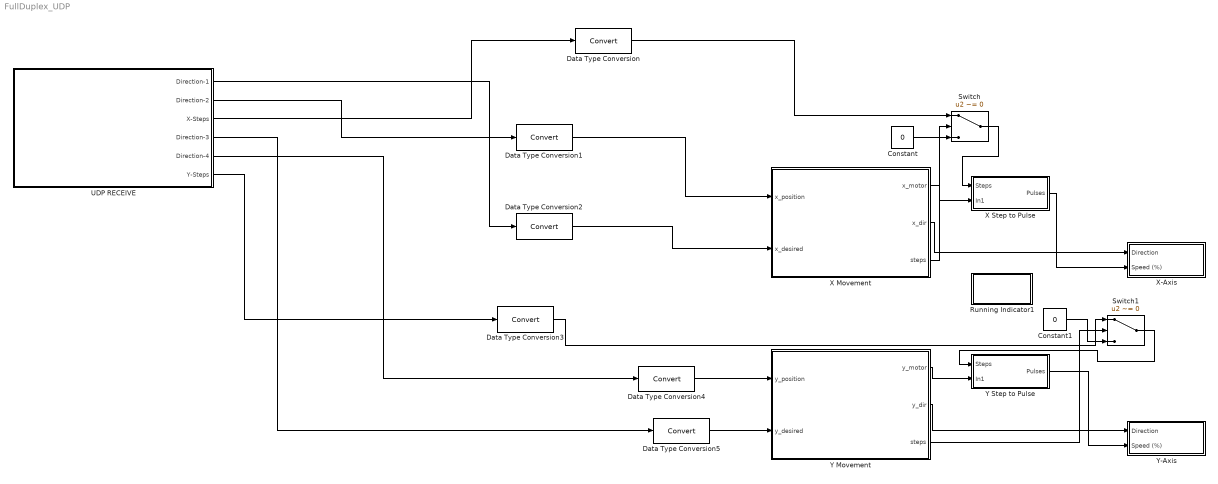
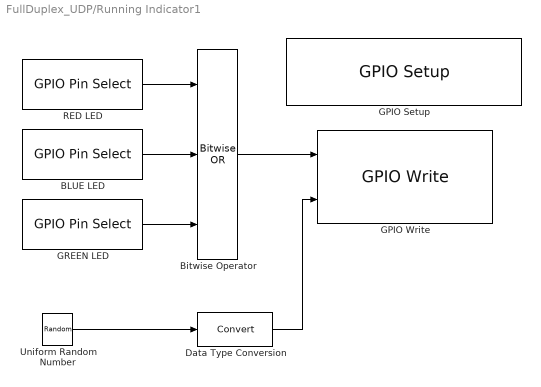
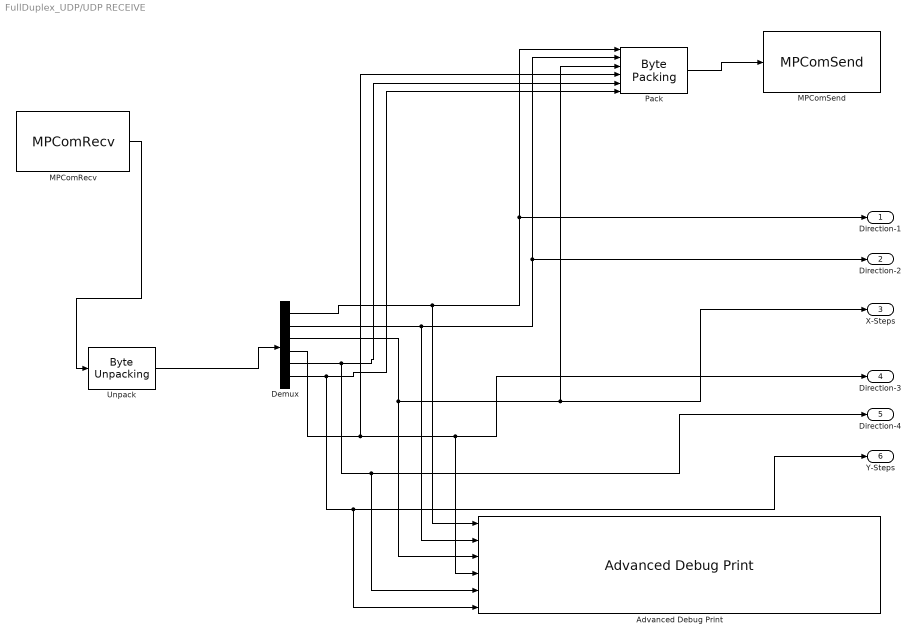
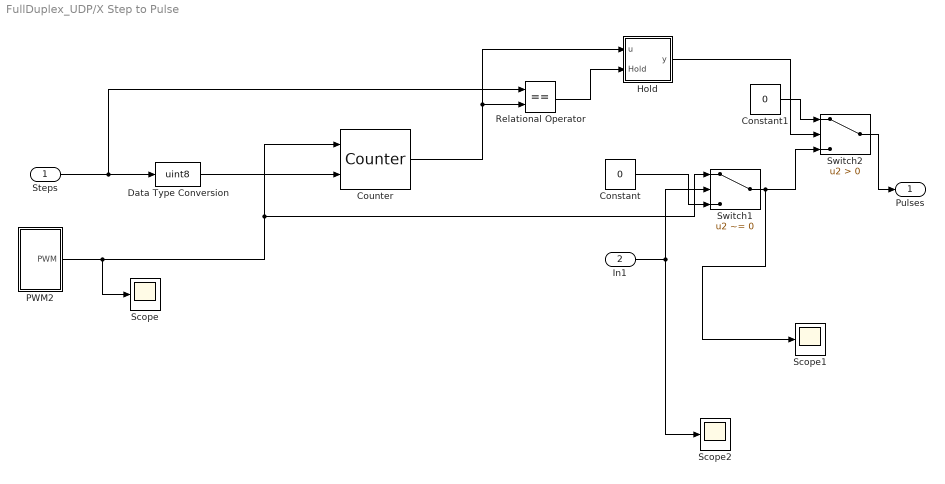
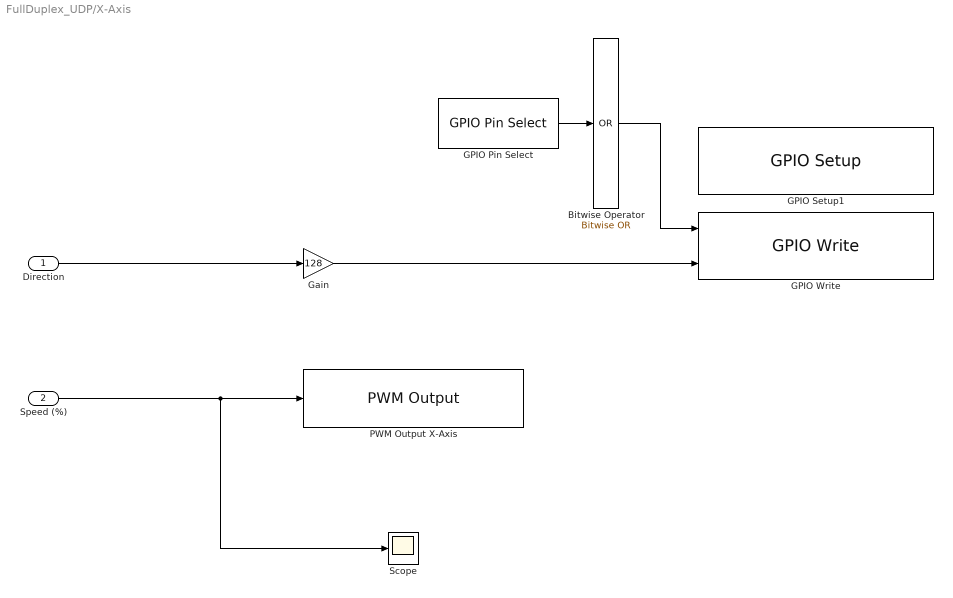
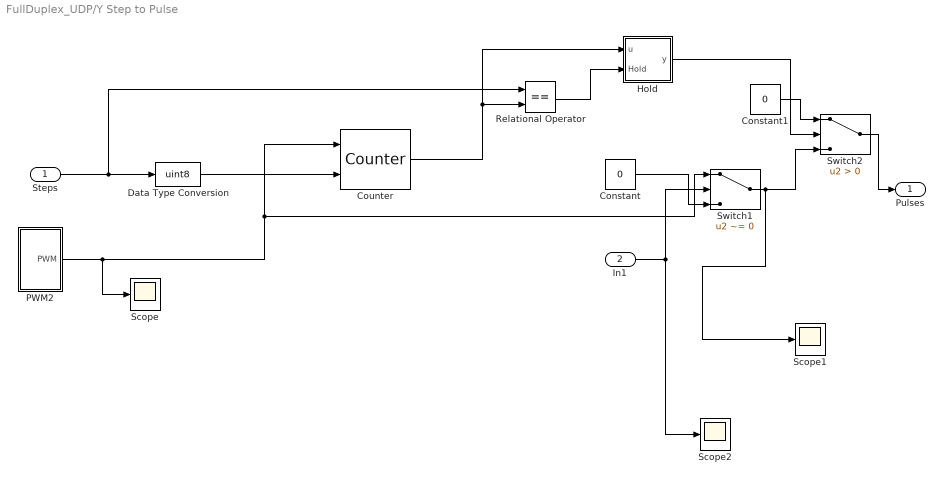
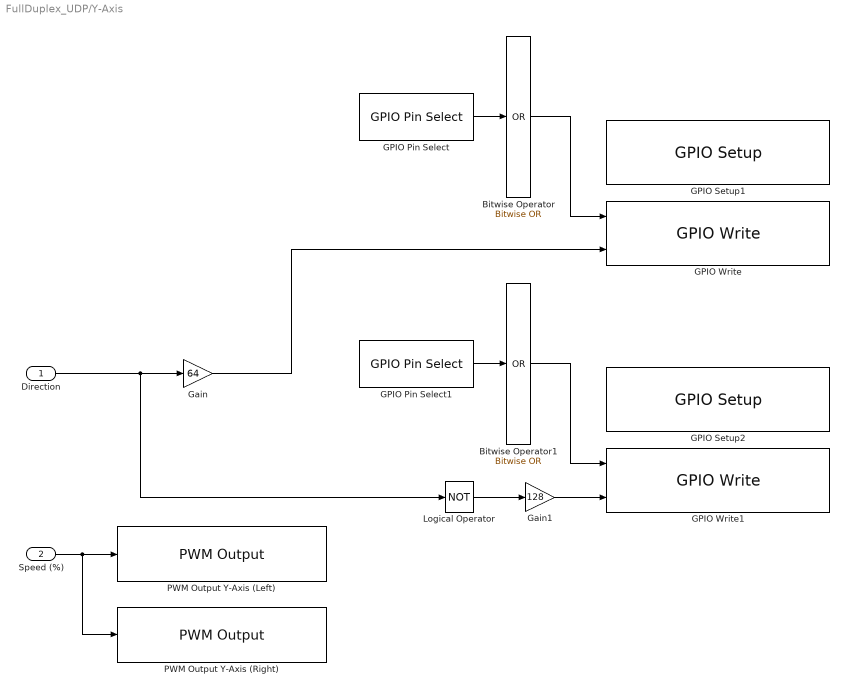
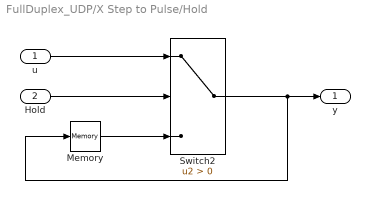
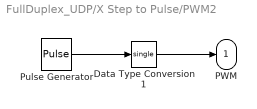
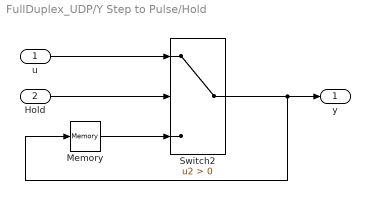
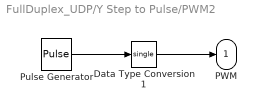
== stateflow chart FullDuplex_UDP/X Movement ==
  state Motor_Moving_CCW1
    entry:
    steps = 1;
    x_dir = 0;
    x_motor = 1;
    exit:
    x_motor = 0;
    steps = 0;
  state Motor_Still
    entry:
    steps = 1;
    x_motor = 0;
    exit:
    steps = 0;
  state Motor_Moving_CW
    entry:
    steps = 1;
    x_dir = 1;
    x_motor = 1;
    exit:
    x_motor = 0;
    steps = 0;
  (default) -> Motor_Still
  Motor_Still -> Motor_Moving_CCW1 [order 1] : [x_position < x_desired]
  Motor_Moving_CCW1 -> Motor_Still [order 1] : [x_position == x_desired]
  Motor_Moving_CW -> Motor_Still [order 1] : [x_position == x_desired]
  Motor_Still -> Motor_Moving_CW [order 2] : [x_position > x_desired]
  Motor_Moving_CCW1 -> Motor_Moving_CW [order 2] : [x_position > x_desired]
  Motor_Moving_CW -> Motor_Moving_CCW1 [order 2] : [x_position < x_desired]
  data: x_position input; x_desired input; x_motor output uint8; x_dir output uint8; steps output single

== stateflow chart FullDuplex_UDP/Y Movement ==
  state Motor_Still
    entry:
    steps = 1;
    y_motor = 0;
  state Motor_Moving_CCW1
    entry:
    steps = 1;
    y_dir = 0;
    y_motor = 1;
    exit:
    y_motor = 0;
    steps = 0;
  state Motor_Moving_CW
    entry:
    steps = 1;
    y_dir = 1;
    y_motor = 1;
    exit:
    y_motor = 0;
    steps = 0;
  (default) -> Motor_Still
  Motor_Still -> Motor_Moving_CCW1 [order 1] : [y_position < y_desired]
  Motor_Moving_CCW1 -> Motor_Still [order 1] : [y_position == y_desired]
  Motor_Moving_CW -> Motor_Still [order 1] : [y_position == y_desired]
  Motor_Still -> Motor_Moving_CW [order 2] : [y_position > y_desired]
  Motor_Moving_CW -> Motor_Moving_CCW1 [order 2] : [y_position < y_desired]
  Motor_Moving_CCW1 -> Motor_Moving_CW [order 2] : [y_position > y_desired]
  data: y_position input; y_desired input; y_motor output uint8; y_dir output uint8; steps output single

/*
 * Academic Student License -- for use by students to meet course
 * requirements and perform academic research at degree granting
 * institutions only.  Not for government, commercial, or other
 * organizational use.
 *
 * File: FullDuplex_UDP.c
 *
 * Code generated for Simulink model 'FullDuplex_UDP'.
 *
 * Model version                  : 1.104
 * Simulink Coder version         : 8.12 (R2017a) 16-Feb-2017
 * C/C++ source code generated on : Thu Oct 18 10:00:35 2018
 *
 * Target selection: ert.tlc
 * Embedded hardware selection: ARM Compatible->ARM Cortex
 * Code generation objectives:
 *    1. Execution efficiency
 *    2. ROM efficiency
 *    3. RAM efficiency
 *    4. Traceability
 *    5. Safety precaution
 *    6. Debugging
 *    7. MISRA C:2012 guidelines
 *    8. Polyspace
 * Validation result: Not run
 */

#include "FullDuplex_UDP.h"
#include "FullDuplex_UDP_private.h"
#include "MWDSP_EPH_R_R.h"
#include "rt_urand_Upu32_Yd_f_pw.h"

/* Named constants for Chart: '<Root>/X Movement' */
#define FullDuplex_IN_Motor_Moving_CCW1 ((uint8_T)1U)
#define FullDuplex_UDP_IN_Motor_Still  ((uint8_T)3U)
#define FullDuplex_U_IN_Motor_Moving_CW ((uint8_T)2U)
#define FullDuplex_U_IN_NO_ACTIVE_CHILD ((uint8_T)0U)

/* Block signals and states (auto storage) */
DW_FullDuplex_UDP FullDuplex_UDP_DW;

/* Real-time model */
RT_MODEL_FullDuplex_UDP FullDuplex_UDP_M_;
RT_MODEL_FullDuplex_UDP *const FullDuplex_UDP_M = &FullDuplex_UDP_M_;
static void rate_scheduler(void);

/*
 *   This function updates active task flag for each subrate.
 * The function is called at model base rate, hence the
 * generated code self-manages all its subrates.
 */
static void rate_scheduler(void)
{
  /* Compute which subrates run during the next base time step.  Subrates
   * are an integer multiple of the base rate counter.  Therefore, the subtask
   * counter is reset when it reaches its limit (zero means run).
   */
  (FullDuplex_UDP_M->Timing.TaskCounters.TID[1])++;
  if ((FullDuplex_UDP_M->Timing.TaskCounters.TID[1]) > 999) {/* Sample time: [0.2s, 0.0s] */
    FullDuplex_UDP_M->Timing.TaskCounters.TID[1] = 0;
  }

  (FullDuplex_UDP_M->Timing.TaskCounters.TID[2])++;
  if ((FullDuplex_UDP_M->Timing.TaskCounters.TID[2]) > 4999) {/* Sample time: [1.0s, 0.0s] */
    FullDuplex_UDP_M->Timing.TaskCounters.TID[2] = 0;
  }
}

/*
 * System initialize for atomic system:
 *    '<Root>/X Step to Pulse'
 *    '<Root>/Y Step to Pulse'
 */
void FullDuplex_UD_XSteptoPulse_Init(DW_XSteptoPulse_FullDuplex_UDP *localDW,
  P_XSteptoPulse_FullDuplex_UDP *localP)
{
  /* InitializeConditions for S-Function (sdspcount2): '<S4>/Counter' */
  localDW->Counter_ClkEphState = 5U;
  localDW->Counter_Count = localP->Counter_InitialCount;

  /* SystemInitialize for Atomic SubSystem: '<S4>/Hold' */
  /* InitializeConditions for Memory: '<S12>/Memory' */
  localDW->Memory_PreviousInput = localP->Memory_X0;

  /* End of SystemInitialize for SubSystem: '<S4>/Hold' */
}

/*
 * Start for atomic system:
 *    '<Root>/X Step to Pulse'
 *    '<Root>/Y Step to Pulse'
 */
void FullDuplex_U_XSteptoPulse_Start(DW_XSteptoPulse_FullDuplex_UDP *localDW)
{
  /* Start for DiscretePulseGenerator: '<S13>/Pulse Generator' */
  localDW->clockTickCounter = 0;
}

/*
 * Output and update for atomic system:
 *    '<Root>/X Step to Pulse'
 *    '<Root>/Y Step to Pulse'
 */
real32_T FullDuplex_UDP_XSteptoPulse(real_T rtu_Steps, uint8_T rtu_In1,
  DW_XSteptoPulse_FullDuplex_UDP *localDW, P_XSteptoPulse_FullDuplex_UDP *localP)
{
  real_T rtb_PulseGenerator;
  real32_T rtb_Switch2_d;
  real32_T rty_Pulses_0;

  /* DiscretePulseGenerator: '<S13>/Pulse Generator' */
  rtb_PulseGenerator = ((((real_T)localDW->clockTickCounter) <
    localP->PulseGenerator_Duty) && (localDW->clockTickCounter >= 0)) ?
    localP->PulseGenerator_Amp : 0.0;
  if (((real_T)localDW->clockTickCounter) >= (localP->PulseGenerator_Period -
       1.0)) {
    localDW->clockTickCounter = 0;
  } else {
    localDW->clockTickCounter++;
  }

  /* End of DiscretePulseGenerator: '<S13>/Pulse Generator' */

  /* S-Function (sdspcount2): '<S4>/Counter' incorporates:
   *  DataTypeConversion: '<S13>/Data Type Conversion1'
   *  DataTypeConversion: '<S4>/Data Type Conversion'
   */
  if (MWDSP_EPH_R_R((real32_T)rtb_PulseGenerator, &localDW->Counter_ClkEphState)
      != 0U) {
    if (localDW->Counter_Count < ((uint8_T)rtu_Steps)) {
      localDW->Counter_Count = (uint8_T)(((uint32_T)localDW->Counter_Count) + 1U);
    } else {
      localDW->Counter_Count = 0U;
    }
  }

  rtb_Switch2_d = (real32_T)localDW->Counter_Count;

  /* Outputs for Atomic SubSystem: '<S4>/Hold' */
  /* Switch: '<S12>/Switch2' incorporates:
   *  Memory: '<S12>/Memory'
   *  RelationalOperator: '<S4>/Relational Operator'
   *  S-Function (sdspcount2): '<S4>/Counter'
   */
  if (!(rtu_Steps == ((real_T)localDW->Counter_Count))) {
    rtb_Switch2_d = localDW->Memory_PreviousInput;
  }

  /* End of Switch: '<S12>/Switch2' */

  /* Update for Memory: '<S12>/Memory' */
  localDW->Memory_PreviousInput = rtb_Switch2_d;

  /* End of Outputs for SubSystem: '<S4>/Hold' */

  /* Switch: '<S4>/Switch2' incorporates:
   *  Constant: '<S4>/Constant'
   *  Constant: '<S4>/Constant1'
   *  Switch: '<S4>/Switch1'
   */
  if (rtb_Switch2_d > localP->Switch2_Threshold) {
    rty_Pulses_0 = localP->Constant1_Value;
  } else if (((int32_T)rtu_In1) != 0) {
    /* Switch: '<S4>/Switch1' incorporates:
     *  DataTypeConversion: '<S13>/Data Type Conversion1'
     */
    rty_Pulses_0 = (real32_T)rtb_PulseGenerator;
  } else {
    rty_Pulses_0 = localP->Constant_Value;
  }

  /* End of Switch: '<S4>/Switch2' */
  return rty_Pulses_0;
}

/* Model step function */
void FullDuplex_UDP_step(void)
{
  uint8_T tmp;
  real32_T rtb_Switch2;
  int32_T i;
  real_T tmp_0;

  /* S-Function (stellaris_lp_sfunc_DataPackin): '<S10>/S-Function' incorporates:
   *  Inport: '<S11>/In1'
   */
  tmp = datapacket_get(FullDuplex_UDP_P.SFunction_p1, 24,
                       FullDuplex_UDP_DW.SFunction_o1);

  /* Outputs for Enabled SubSystem: '<S10>/Enabled Subsystem' incorporates:
   *  EnablePort: '<S11>/Enable'
   */
  if (((int32_T)tmp) > 0) {
    for (i = 0; i < 24; i++) {
      FullDuplex_UDP_DW.In1[i] = FullDuplex_UDP_DW.SFunction_o1[i];
    }
  }

  /* End of S-Function (stellaris_lp_sfunc_DataPackin): '<S10>/S-Function' */
  /* End of Outputs for SubSystem: '<S10>/Enabled Subsystem' */

  /* S-Function (xpcbytepacking): '<S2>/Unpack' */

  /* Byte Unpacking: <S2>/Unpack */
  (void)memcpy((uint8_T*)&FullDuplex_UDP_DW.Unpack[0], (uint8_T*)
               &FullDuplex_UDP_DW.In1[0] + 0, 24);

  /* Chart: '<Root>/X Movement' */
  /* Gateway: X Movement */
  /* During: X Movement */
  if (((uint32_T)FullDuplex_UDP_DW.is_active_c2_FullDuplex_UDP) == 0U) {
    /* Entry: X Movement */
    FullDuplex_UDP_DW.is_active_c2_FullDuplex_UDP = 1U;

    /* Entry Internal: X Movement */
    /* Transition: '<S3>:10' */
    FullDuplex_UDP_DW.is_c2_FullDuplex_UDP = FullDuplex_UDP_IN_Motor_Still;

    /* Entry 'Motor_Still': '<S3>:3' */
    /* '<S3>:3:1' steps = 1; */
    FullDuplex_UDP_DW.steps_f = 1.0F;

    /* '<S3>:3:1' x_motor = 0; */
    FullDuplex_UDP_DW.x_motor = 0U;
  } else {
    switch (FullDuplex_UDP_DW.is_c2_FullDuplex_UDP) {
     case FullDuplex_IN_Motor_Moving_CCW1:
      FullDuplex_UDP_DW.x_dir = 0U;

      /* During 'Motor_Moving_CCW1': '<S3>:1' */
      /* '<S3>:4:1' sf_internal_predicateOutput = ... */
      /* '<S3>:4:1' x_position == x_desired; */
      if (FullDuplex_UDP_DW.Unpack[1] == FullDuplex_UDP_DW.Unpack[0]) {
        /* Transition: '<S3>:4' */
        /* Exit 'Motor_Moving_CCW1': '<S3>:1' */
        /* '<S3>:1:3' x_motor = 0; */
        /* '<S3>:1:4' steps = 0; */
        FullDuplex_UDP_DW.is_c2_FullDuplex_UDP = FullDuplex_UDP_IN_Motor_Still;

        /* Entry 'Motor_Still': '<S3>:3' */
        /* '<S3>:3:1' steps = 1; */
        FullDuplex_UDP_DW.steps_f = 1.0F;

        /* '<S3>:3:1' x_motor = 0; */
        FullDuplex_UDP_DW.x_motor = 0U;
      } else {
        /* '<S3>:18:1' sf_internal_predicateOutput = ... */
        /* '<S3>:18:1' x_position > x_desired; */
        if (FullDuplex_UDP_DW.Unpack[1] > FullDuplex_UDP_DW.Unpack[0]) {
          /* Transition: '<S3>:18' */
          /* Exit 'Motor_Moving_CCW1': '<S3>:1' */
          /* '<S3>:1:3' x_motor = 0; */
          /* '<S3>:1:4' steps = 0; */
          FullDuplex_UDP_DW.is_c2_FullDuplex_UDP =
            FullDuplex_U_IN_Motor_Moving_CW;

          /* Entry 'Motor_Moving_CW': '<S3>:7' */
          /* '<S3>:7:1' steps = 1; */
          FullDuplex_UDP_DW.steps_f = 1.0F;

          /* '<S3>:7:1' x_dir = 1; */
          FullDuplex_UDP_DW.x_dir = 1U;

          /* '<S3>:7:1' x_motor = 1; */
          FullDuplex_UDP_DW.x_motor = 1U;
        }
      }
      break;

     case FullDuplex_U_IN_Motor_Moving_CW:
      FullDuplex_UDP_DW.x_dir = 1U;

      /* During 'Motor_Moving_CW': '<S3>:7' */
      /* '<S3>:9:1' sf_internal_predicateOutput = ... */
      /* '<S3>:9:1' x_position == x_desired; */
      if (FullDuplex_UDP_DW.Unpack[1] == FullDuplex_UDP_DW.Unpack[0]) {
        /* Transition: '<S3>:9' */
        /* Exit 'Motor_Moving_CW': '<S3>:7' */
        /* '<S3>:7:3' x_motor = 0; */
        /* '<S3>:7:4' steps = 0; */
        FullDuplex_UDP_DW.is_c2_FullDuplex_UDP = FullDuplex_UDP_IN_Motor_Still;

        /* Entry 'Motor_Still': '<S3>:3' */
        /* '<S3>:3:1' steps = 1; */
        FullDuplex_UDP_DW.steps_f = 1.0F;

        /* '<S3>:3:1' x_motor = 0; */
        FullDuplex_UDP_DW.x_motor = 0U;
      } else {
        /* '<S3>:17:1' sf_internal_predicateOutput = ... */
        /* '<S3>:17:1' x_position < x_desired; */
        if (FullDuplex_UDP_DW.Unpack[1] < FullDuplex_UDP_DW.Unpack[0]) {
          /* Transition: '<S3>:17' */
          /* Exit 'Motor_Moving_CW': '<S3>:7' */
          /* '<S3>:7:3' x_motor = 0; */
          /* '<S3>:7:4' steps = 0; */
          FullDuplex_UDP_DW.is_c2_FullDuplex_UDP =
            FullDuplex_IN_Motor_Moving_CCW1;

          /* Entry 'Motor_Moving_CCW1': '<S3>:1' */
          /* '<S3>:1:1' steps = 1; */
          FullDuplex_UDP_DW.steps_f = 1.0F;

          /* '<S3>:1:1' x_dir = 0; */
          FullDuplex_UDP_DW.x_dir = 0U;

          /* '<S3>:1:1' x_motor = 1; */
          FullDuplex_UDP_DW.x_motor = 1U;
        }
      }
      break;

     default:
      /* During 'Motor_Still': '<S3>:3' */
      /* '<S3>:5:1' sf_internal_predicateOutput = ... */
      /* '<S3>:5:1' x_position < x_desired; */
      if (FullDuplex_UDP_DW.Unpack[1] < FullDuplex_UDP_DW.Unpack[0]) {
        /* Transition: '<S3>:5' */
        /* Exit 'Motor_Still': '<S3>:3' */
        /* '<S3>:3:1' steps = 0; */
        FullDuplex_UDP_DW.is_c2_FullDuplex_UDP = FullDuplex_IN_Motor_Moving_CCW1;

        /* Entry 'Motor_Moving_CCW1': '<S3>:1' */
        /* '<S3>:1:1' steps = 1; */
        FullDuplex_UDP_DW.steps_f = 1.0F;

        /* '<S3>:1:1' x_dir = 0; */
        FullDuplex_UDP_DW.x_dir = 0U;

        /* '<S3>:1:1' x_motor = 1; */
        FullDuplex_UDP_DW.x_motor = 1U;
      } else {
        /* '<S3>:8:1' sf_internal_predicateOutput = ... */
        /* '<S3>:8:1' x_position > x_desired; */
        if (FullDuplex_UDP_DW.Unpack[1] > FullDuplex_UDP_DW.Unpack[0]) {
          /* Transition: '<S3>:8' */
          /* Exit 'Motor_Still': '<S3>:3' */
          /* '<S3>:3:1' steps = 0; */
          FullDuplex_UDP_DW.is_c2_FullDuplex_UDP =
            FullDuplex_U_IN_Motor_Moving_CW;

          /* Entry 'Motor_Moving_CW': '<S3>:7' */
          /* '<S3>:7:1' steps = 1; */
          FullDuplex_UDP_DW.steps_f = 1.0F;

          /* '<S3>:7:1' x_dir = 1; */
          FullDuplex_UDP_DW.x_dir = 1U;

          /* '<S3>:7:1' x_motor = 1; */
          FullDuplex_UDP_DW.x_motor = 1U;
        }
      }
      break;
    }
  }

  /* End of Chart: '<Root>/X Movement' */

  /* S-Function (stellaris_lp_sfunc_GPIOWrite): '<S5>/GPIO Write' incorporates:
   *  Constant: '<S5>/GPIO Pin Select'
   *  Gain: '<S5>/Gain'
   */
  GPIOWrite(FullDuplex_UDP_P.GPIOWrite_p1, FullDuplex_UDP_P.GPIOPinSelect_Value,
            (uint8_T)(((uint32_T)FullDuplex_UDP_P.Gain_Gain) * ((uint32_T)
              FullDuplex_UDP_DW.x_dir)));

  /* Switch: '<Root>/Switch' incorporates:
   *  Constant: '<Root>/Constant'
   *  DataTypeConversion: '<Root>/Data Type Conversion'
   */
  if (FullDuplex_UDP_DW.steps_f != 0.0F) {
    tmp_0 = (real_T)FullDuplex_UDP_DW.Unpack[2];
  } else {
    tmp_0 = FullDuplex_UDP_P.Constant_Value;
  }

  /* End of Switch: '<Root>/Switch' */

  /* Outputs for Atomic SubSystem: '<Root>/X Step to Pulse' */
  rtb_Switch2 = (real32_T) FullDuplex_UDP_XSteptoPulse(tmp_0,
    FullDuplex_UDP_DW.x_motor, &FullDuplex_UDP_DW.XSteptoPulse,
    (P_XSteptoPulse_FullDuplex_UDP *)(&FullDuplex_UDP_P.XSteptoPulse));

  /* End of Outputs for SubSystem: '<Root>/X Step to Pulse' */

  /* S-Function (stellaris_lp_sfunc_PWMUpdate_f): '<S14>/S-Function2' */
  PWMUpdate_f(FullDuplex_UDP_P.SFunction2_p1, rtb_Switch2);

  /* S-Function (stellaris_lp_sfunc_GPIOSetup): '<S5>/GPIO Setup1' */
  GPIOVoidFunc();

  /* Chart: '<Root>/Y Movement' */
  /* Gateway: Y Movement */
  /* During: Y Movement */
  if (((uint32_T)FullDuplex_UDP_DW.is_active_c3_FullDuplex_UDP) == 0U) {
    /* Entry: Y Movement */
    FullDuplex_UDP_DW.is_active_c3_FullDuplex_UDP = 1U;

    /* Entry Internal: Y Movement */
    /* Transition: '<S6>:10' */
    FullDuplex_UDP_DW.is_c3_FullDuplex_UDP = FullDuplex_UDP_IN_Motor_Still;

    /* Entry 'Motor_Still': '<S6>:3' */
    /* '<S6>:3:1' steps = 1; */
    FullDuplex_UDP_DW.steps = 1.0F;

    /* '<S6>:3:1' y_motor = 0; */
    FullDuplex_UDP_DW.y_motor = 0U;
  } else {
    switch (FullDuplex_UDP_DW.is_c3_FullDuplex_UDP) {
     case FullDuplex_IN_Motor_Moving_CCW1:
      FullDuplex_UDP_DW.y_dir = 0U;

      /* During 'Motor_Moving_CCW1': '<S6>:1' */
      /* '<S6>:4:1' sf_internal_predicateOutput = ... */
      /* '<S6>:4:1' y_position == y_desired; */
      if (FullDuplex_UDP_DW.Unpack[4] == FullDuplex_UDP_DW.Unpack[3]) {
        /* Transition: '<S6>:4' */
        /* Exit 'Motor_Moving_CCW1': '<S6>:1' */
        /* '<S6>:1:3' y_motor = 0; */
        /* '<S6>:1:4' steps = 0; */
        FullDuplex_UDP_DW.is_c3_FullDuplex_UDP = FullDuplex_UDP_IN_Motor_Still;

        /* Entry 'Motor_Still': '<S6>:3' */
        /* '<S6>:3:1' steps = 1; */
        FullDuplex_UDP_DW.steps = 1.0F;

        /* '<S6>:3:1' y_motor = 0; */
        FullDuplex_UDP_DW.y_motor = 0U;
      } else {
        /* '<S6>:17:1' sf_internal_predicateOutput = ... */
        /* '<S6>:17:1' y_position > y_desired; */
        if (FullDuplex_UDP_DW.Unpack[4] > FullDuplex_UDP_DW.Unpack[3]) {
          /* Transition: '<S6>:17' */
          /* Exit 'Motor_Moving_CCW1': '<S6>:1' */
          /* '<S6>:1:3' y_motor = 0; */
          /* '<S6>:1:4' steps = 0; */
          FullDuplex_UDP_DW.is_c3_FullDuplex_UDP =
            FullDuplex_U_IN_Motor_Moving_CW;

          /* Entry 'Motor_Moving_CW': '<S6>:7' */
          /* '<S6>:7:1' steps = 1; */
          FullDuplex_UDP_DW.steps = 1.0F;

          /* '<S6>:7:1' y_dir = 1; */
          FullDuplex_UDP_DW.y_dir = 1U;

          /* '<S6>:7:1' y_motor = 1; */
          FullDuplex_UDP_DW.y_motor = 1U;
        }
      }
      break;

     case FullDuplex_U_IN_Motor_Moving_CW:
      FullDuplex_UDP_DW.y_dir = 1U;

      /* During 'Motor_Moving_CW': '<S6>:7' */
      /* '<S6>:9:1' sf_internal_predicateOutput = ... */
      /* '<S6>:9:1' y_position == y_desired; */
      if (FullDuplex_UDP_DW.Unpack[4] == FullDuplex_UDP_DW.Unpack[3]) {
        /* Transition: '<S6>:9' */
        /* Exit 'Motor_Moving_CW': '<S6>:7' */
        /* '<S6>:7:3' y_motor = 0; */
        /* '<S6>:7:4' steps = 0; */
        FullDuplex_UDP_DW.is_c3_FullDuplex_UDP = FullDuplex_UDP_IN_Motor_Still;

        /* Entry 'Motor_Still': '<S6>:3' */
        /* '<S6>:3:1' steps = 1; */
        FullDuplex_UDP_DW.steps = 1.0F;

        /* '<S6>:3:1' y_motor = 0; */
        FullDuplex_UDP_DW.y_motor = 0U;
      } else {
        /* '<S6>:18:1' sf_internal_predicateOutput = ... */
        /* '<S6>:18:1' y_position < y_desired; */
        if (FullDuplex_UDP_DW.Unpack[4] < FullDuplex_UDP_DW.Unpack[3]) {
          /* Transition: '<S6>:18' */
          /* Exit 'Motor_Moving_CW': '<S6>:7' */
          /* '<S6>:7:3' y_motor = 0; */
          /* '<S6>:7:4' steps = 0; */
          FullDuplex_UDP_DW.is_c3_FullDuplex_UDP =
            FullDuplex_IN_Motor_Moving_CCW1;

          /* Entry 'Motor_Moving_CCW1': '<S6>:1' */
          /* '<S6>:1:1' steps = 1; */
          FullDuplex_UDP_DW.steps = 1.0F;

          /* '<S6>:1:1' y_dir = 0; */
          FullDuplex_UDP_DW.y_dir = 0U;

          /* '<S6>:1:1' y_motor = 1; */
          FullDuplex_UDP_DW.y_motor = 1U;
        }
      }
      break;

     default:
      /* During 'Motor_Still': '<S6>:3' */
      /* '<S6>:5:1' sf_internal_predicateOutput = ... */
      /* '<S6>:5:1' y_position < y_desired; */
      if (FullDuplex_UDP_DW.Unpack[4] < FullDuplex_UDP_DW.Unpack[3]) {
        /* Transition: '<S6>:5' */
        FullDuplex_UDP_DW.is_c3_FullDuplex_UDP = FullDuplex_IN_Motor_Moving_CCW1;

        /* Entry 'Motor_Moving_CCW1': '<S6>:1' */
        /* '<S6>:1:1' steps = 1; */
        FullDuplex_UDP_DW.steps = 1.0F;

        /* '<S6>:1:1' y_dir = 0; */
        FullDuplex_UDP_DW.y_dir = 0U;

        /* '<S6>:1:1' y_motor = 1; */
        FullDuplex_UDP_DW.y_motor = 1U;
      } else {
        /* '<S6>:8:1' sf_internal_predicateOutput = ... */
        /* '<S6>:8:1' y_position > y_desired; */
        if (FullDuplex_UDP_DW.Unpack[4] > FullDuplex_UDP_DW.Unpack[3]) {
          /* Transition: '<S6>:8' */
          FullDuplex_UDP_DW.is_c3_FullDuplex_UDP =
            FullDuplex_U_IN_Motor_Moving_CW;

          /* Entry 'Motor_Moving_CW': '<S6>:7' */
          /* '<S6>:7:1' steps = 1; */
          FullDuplex_UDP_DW.steps = 1.0F;

          /* '<S6>:7:1' y_dir = 1; */
          FullDuplex_UDP_DW.y_dir = 1U;

          /* '<S6>:7:1' y_motor = 1; */
          FullDuplex_UDP_DW.y_motor = 1U;
        }
      }
      break;
    }
  }

  /* End of Chart: '<Root>/Y Movement' */

  /* S-Function (stellaris_lp_sfunc_GPIOWrite): '<S8>/GPIO Write' incorporates:
   *  Constant: '<S8>/GPIO Pin Select'
   *  Gain: '<S8>/Gain'
   */
  GPIOWrite(FullDuplex_UDP_P.GPIOWrite_p1_n,
            FullDuplex_UDP_P.GPIOPinSelect_Value_g, (uint8_T)(((uint32_T)
              FullDuplex_UDP_P.Gain_Gain_n) * ((uint32_T)FullDuplex_UDP_DW.y_dir)));

  /* S-Function (stellaris_lp_sfunc_GPIOWrite): '<S8>/GPIO Write1' incorporates:
   *  Constant: '<S8>/GPIO Pin Select1'
   *  Gain: '<S8>/Gain1'
   *  Logic: '<S8>/Logical Operator'
   */
  GPIOWrite(FullDuplex_UDP_P.GPIOWrite1_p1,
            FullDuplex_UDP_P.GPIOPinSelect1_Value, (uint8_T)((int32_T)
             ((!(((int32_T)FullDuplex_UDP_DW.y_dir) != 0)) ? ((int32_T)
    FullDuplex_UDP_P.Gain1_Gain) : 0)));

  /* Switch: '<Root>/Switch1' incorporates:
   *  Constant: '<Root>/Constant1'
   *  DataTypeConversion: '<Root>/Data Type Conversion3'
   */
  if (FullDuplex_UDP_DW.steps != 0.0F) {
    tmp_0 = (real_T)FullDuplex_UDP_DW.Unpack[5];
  } else {
    tmp_0 = FullDuplex_UDP_P.Constant1_Value;
  }

  /* End of Switch: '<Root>/Switch1' */

  /* Outputs for Atomic SubSystem: '<Root>/Y Step to Pulse' */
  rtb_Switch2 = (real32_T) FullDuplex_UDP_XSteptoPulse(tmp_0,
    FullDuplex_UDP_DW.y_motor, &FullDuplex_UDP_DW.YSteptoPulse,
    (P_XSteptoPulse_FullDuplex_UDP *)(&FullDuplex_UDP_P.YSteptoPulse));

  /* End of Outputs for SubSystem: '<Root>/Y Step to Pulse' */

  /* S-Function (stellaris_lp_sfunc_PWMUpdate_f): '<S17>/S-Function2' */
  PWMUpdate_f(FullDuplex_UDP_P.SFunction2_p1_b, rtb_Switch2);

  /* S-Function (stellaris_lp_sfunc_PWMUpdate_f): '<S18>/S-Function2' */
  PWMUpdate_f(FullDuplex_UDP_P.SFunction2_p1_n, rtb_Switch2);

  /* S-Function (stellaris_lp_sfunc_GPIOSetup): '<S8>/GPIO Setup1' */
  GPIOVoidFunc();

  /* S-Function (stellaris_lp_sfunc_GPIOSetup): '<S8>/GPIO Setup2' */
  GPIOVoidFunc();

  /* S-Function (xpcbytepacking): '<S9>/Pack' */

  /* Byte Packing: <S9>/Pack */
  (void)memcpy((uint8_T*)&FullDuplex_UDP_DW.Pack[0] + 0, (uint8_T*)
               &FullDuplex_UDP_DW.Unpack[0], 4);
  (void)memcpy((uint8_T*)&FullDuplex_UDP_DW.Pack[0] + 4, (uint8_T*)
               &FullDuplex_UDP_DW.Unpack[1], 4);
  (void)memcpy((uint8_T*)&FullDuplex_UDP_DW.Pack[0] + 8, (uint8_T*)
               &FullDuplex_UDP_DW.Unpack[2], 4);
  (void)memcpy((uint8_T*)&FullDuplex_UDP_DW.Pack[0] + 12, (uint8_T*)
               &FullDuplex_UDP_DW.Unpack[3], 4);
  (void)memcpy((uint8_T*)&FullDuplex_UDP_DW.Pack[0] + 16, (uint8_T*)
               &FullDuplex_UDP_DW.Unpack[4], 4);
  (void)memcpy((uint8_T*)&FullDuplex_UDP_DW.Pack[0] + 20, (uint8_T*)
               &FullDuplex_UDP_DW.Unpack[5], 4);
  if (FullDuplex_UDP_M->Timing.TaskCounters.TID[2] == 0) {
    /* S-Function (stellaris_lp_sfunc_DebugPrint2): '<S9>/DebugPrint2_sfcn' */
    DebugPrint2(FullDuplex_UDP_P.DebugPrint2_sfcn_p1, FullDuplex_UDP_DW.Pack);
  }

  /* S-Function (xpcbytepacking): '<S2>/Pack' */

  /* Byte Packing: <S2>/Pack */
  (void)memcpy((uint8_T*)&FullDuplex_UDP_DW.Pack_n[0] + 0, (uint8_T*)
               &FullDuplex_UDP_DW.Unpack[0], 4);
  (void)memcpy((uint8_T*)&FullDuplex_UDP_DW.Pack_n[0] + 4, (uint8_T*)
               &FullDuplex_UDP_DW.Unpack[1], 4);
  (void)memcpy((uint8_T*)&FullDuplex_UDP_DW.Pack_n[0] + 8, (uint8_T*)
               &FullDuplex_UDP_DW.Unpack[2], 4);
  (void)memcpy((uint8_T*)&FullDuplex_UDP_DW.Pack_n[0] + 12, (uint8_T*)
               &FullDuplex_UDP_DW.Unpack[3], 4);
  (void)memcpy((uint8_T*)&FullDuplex_UDP_DW.Pack_n[0] + 16, (uint8_T*)
               &FullDuplex_UDP_DW.Unpack[4], 4);
  (void)memcpy((uint8_T*)&FullDuplex_UDP_DW.Pack_n[0] + 20, (uint8_T*)
               &FullDuplex_UDP_DW.Unpack[5], 4);

  /* S-Function (stellaris_lp_sfunc_DataPackout): '<S2>/MPComSend' */
  datapacket_put(FullDuplex_UDP_P.MPComSend_p1, 24, FullDuplex_UDP_DW.Pack_n);
  if (FullDuplex_UDP_M->Timing.TaskCounters.TID[1] == 0) {
    /* S-Function (stellaris_lp_sfunc_GPIOWrite): '<S1>/GPIO Write' incorporates:
     *  Constant: '<S1>/BLUE LED'
     *  Constant: '<S1>/GREEN LED'
     *  Constant: '<S1>/RED LED'
     *  DataTypeConversion: '<S1>/Data Type Conversion'
     *  S-Function (sfix_bitop): '<S1>/Bitwise Operator'
     *  UniformRandomNumber: '<S1>/Uniform Random Number'
     */
    GPIOWrite(FullDuplex_UDP_P.GPIOWrite_p1_b, (uint8_T)
              ((FullDuplex_UDP_P.REDLED_Value | FullDuplex_UDP_P.BLUELED_Value) |
               FullDuplex_UDP_P.GREENLED_Value), (uint8_T)
              FullDuplex_UDP_DW.UniformRandomNumber_NextOutput);
  }

  /* S-Function (stellaris_lp_sfunc_GPIOSetup): '<S1>/GPIO Setup' */
  GPIOVoidFunc();
  if (FullDuplex_UDP_M->Timing.TaskCounters.TID[1] == 0) {
    /* Update for UniformRandomNumber: '<S1>/Uniform Random Number' */
    FullDuplex_UDP_DW.UniformRandomNumber_NextOutput =
      ((FullDuplex_UDP_P.UniformRandomNumber_Maximum -
        FullDuplex_UDP_P.UniformRandomNumber_Minimum) * rt_urand_Upu32_Yd_f_pw
       (&FullDuplex_UDP_DW.RandSeed)) +
      FullDuplex_UDP_P.UniformRandomNumber_Minimum;
  }

  rate_scheduler();
}
